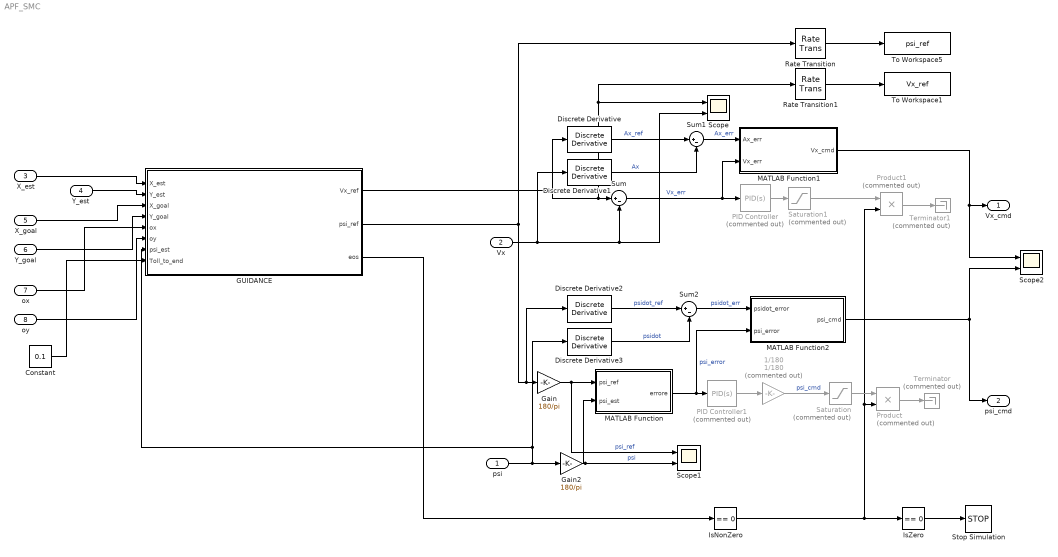
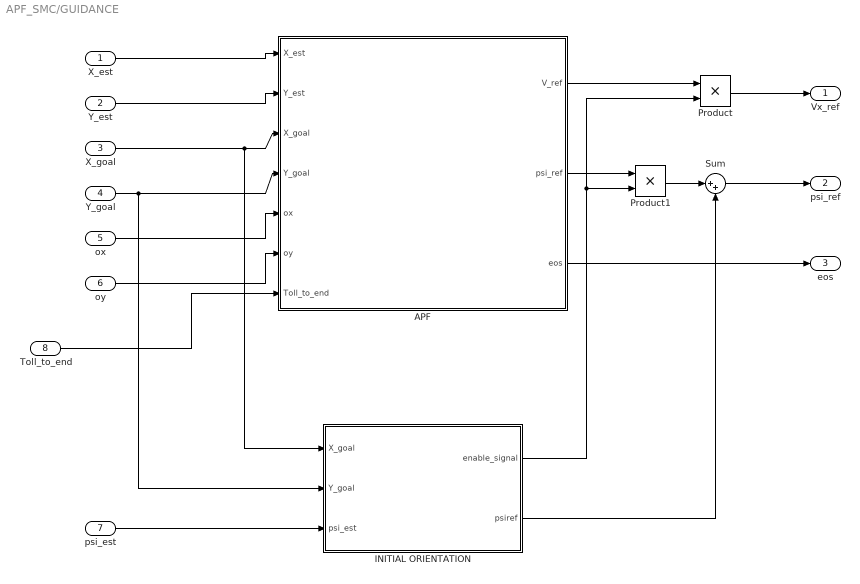
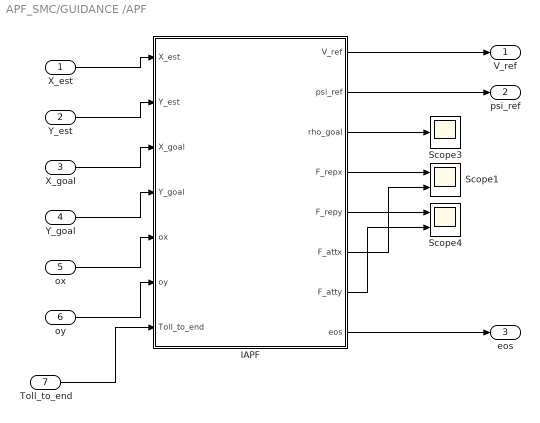
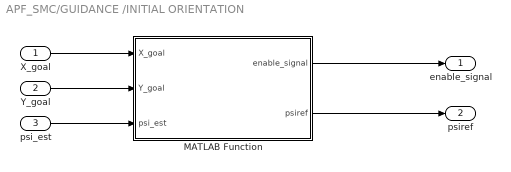
== matlab function APF_SMC/GUIDANCE /INITIAL ORIENTATION/MATLAB Function ==
function [enable_signal, psiref] = fcn(X_goal, Y_goal, psi_est)
psiref=0;
enable_signal=0;

persistent en
if isempty(en)
    en=0;
end

if en==0
if -pi<psi_est && psi_est<=-pi/2 
  if X_goal>=0 && Y_goal>=0
      enable_signal=0;
      psiref=0;
      en=0;
  end
   if X_goal>0 && Y_goal<0
      enable_signal=0;
      psiref=0;
      en=0;
   end
    if X_goal<=0 && Y_goal<=0
      enable_signal=1;
      en=1;
      psiref=0;
    end
    if X_goal<0 && Y_goal>0
      enable_signal=1;
      en=1;
      psiref=0;
    end
end
if pi/2<psi_est && psi_est<=pi 
  if X_goal>=0 && Y_goal>=0
      enable_signal=0;
      psiref=0;
      en=0;
  end
   if X_goal>0 && Y_goal<0
      enable_signal=0;
      psiref=0;
      en=0;
   end
    if X_goal<=0 && Y_goal<=0
      enable_signal=1;
      en=1;
      psiref=0;
    end
    if X_goal<0 && Y_goal>0
      enable_signal=1;
      en=1;
      psiref=0;
    end
end

if -pi/2<=psi_est && psi_est<=pi/2
  if X_goal>=0 && Y_goal>=0
      enable_signal=1;
      en=1;
      psiref=0;
  end
   if X_goal>0 && Y_goal<0
      enable_signal=1;
      en=1;
      psiref=0;
   end
    if X_goal<=0 && Y_goal<=0
      enable_signal=0;
      psiref=-pi;
      en=0;
    end
    if X_goal<0 && Y_goal>0
      enable_signal=0;
      psiref=pi;
      en=0;
    end
end
else
    enable_signal=1;
    psiref=0;
end

== matlab function APF_SMC/MATLAB Function1 ==
function Vx_cmd = SMC_Vx(Ax_err, Vx_err)
% SMC params
lamda = 30;
K = 0.1;
% Sliding surface
s = zeros(1);
s = (Ax_err) + lamda*(Vx_err);


Vx_cmd = K*sign(s);

== matlab function APF_SMC/MATLAB Function ==
function errore = fcn(psi_ref, psi_est)
errore=psi_ref-psi_est;

if abs(errore)>180
    errore=errore-360*sign(errore);
end

== matlab function APF_SMC/GUIDANCE /APF/IAPF ==
function [V_ref, psi_ref, rho_goal, F_repx, F_repy, F_attx, F_atty, eos]  = fcn(X_est, Y_est, X_goal, Y_goal,  ox, oy, Toll_to_end)

% Potential field characteristics
rho_0=0.7;                   % Area of influence of obstacle  [m]
kp = 0.15;                   % Attractive pottential gain
eta = 0.05;                  % Repulsive potential gain

q=[X_est, Y_est]';           % Actual position [m]       
qg=[X_goal, Y_goal]';        % Goal position   [m]
rho_goal=norm(q-qg,2);       % Distance actual position-goal position
d=2;                         % Distance from goal, point of attractive field characteristic switching

% ATTRACTIVE
if rho_goal<=d
F_attx = -kp*(X_est-X_goal);
F_atty = -kp*(Y_est-Y_goal);
else    
F_attx = -kp*(X_est-X_goal)*d/rho_goal;
F_atty = -kp*(Y_est-Y_goal)*d/rho_goal;
end


% REPULSIVE
F_repx=0;
F_repy=0;
dmin=10000;
qc=[0 0]';
obst=0;

for k=1:length(ox)
    qc=[ox(k) oy(k)]';                          % Obstacle position [m]
    dq = norm(q-qc,2);                          % Distance actual position- obstacle position
     
    if dmin >= dq
        dmin = dq;
        min_ost = k;
        qc=[ox(min_ost) oy(min_ost)]';
        rho = norm(q-qc,2) ;                    % Distance with the nearest obstacle
        
        if rho<=rho_0                           % Inside obstacle area! Danger
           F_repx=eta*(1/rho - 1/rho_0)*1/(rho).^2*(X_est-ox(min_ost))/norm(q-qc,2);
           F_repy=eta*(1/rho - 1/rho_0)*1/(rho).^2*(Y_est-oy(min_ost))/norm(q-qc,2);  
           obst=1/rho;
        end
     
     end
end

% To find the goal if the obstacle is near
dob=0.3;
dgr=0.3;

if norm(qg-qc,2)<=dob && norm(q-qg,2)<=dgr
    F_totx=F_attx;
    F_toty=F_atty;
else
    F_totx = F_attx+F_repx;
    F_toty = F_atty+F_repy;
end

% Potential Force
F_tot=norm([F_totx,F_toty]);


% ORIENTATION REFERENCE SIGNAL
psi_ref=atan2(F_toty,F_totx);


% VELOCITY REFERENCE SIGNAL
% 1° prova per il campo di velocità
% V_ref=F_totx/F_tot*0.3;

% 2° prova per il campo di velocità
delta=0.4/rho_goal+obst;
V_ref= 0.3*2/(2+delta);

eos = 0;
% END OF SIMULATION
if abs(rho_goal)<=Toll_to_end
    eos=1;
end

% Mathematical minimum
if F_tot==0
    psi_ref=0;
    V_ref=-0.3;
end

== matlab function APF_SMC/MATLAB Function2 ==
function psi_cmd = SMC_psi(psidot_error, psi_error)
% SMC params
lamda = 100;
K = 0.2;
% Sliding surface
s = zeros(1);
s = (psidot_error) + lamda*(psi_error);


psi_cmd = K*sign(s);

//
// Academic License - for use in teaching, academic research, and meeting
// course requirements at degree granting institutions only.  Not for
// government, commercial, or other organizational use.
//
// File: APF_SMC.cpp
//
// Code generated for Simulink model 'APF_SMC'.
//
// Model version                  : 1.113
// Simulink Coder version         : 9.1 (R2019a) 23-Nov-2018
// C/C++ source code generated on : Thu Dec  2 12:23:48 2021
//
// Target selection: ert.tlc
// Embedded hardware selection: ARM Compatible->ARM Cortex
// Code generation objectives: Unspecified
// Validation result: Not run
//
#include "APF_SMC.h"
#include "APF_SMC_private.h"

// Forward declaration for local functions
static real_T APF_SMC_norm(const real_T x[2]);

// Function for MATLAB Function: '<S11>/IAPF'
static real_T APF_SMC_norm(const real_T x[2])
{
  real_T y;
  real_T scale;
  real_T absxk;
  real_T t;
  scale = 3.3121686421112381E-170;
  absxk = std::abs(x[0]);
  if (absxk > 3.3121686421112381E-170) {
    y = 1.0;
    scale = absxk;
  } else {
    t = absxk / 3.3121686421112381E-170;
    y = t * t;
  }

  absxk = std::abs(x[1]);
  if (absxk > scale) {
    t = scale / absxk;
    y = y * t * t + 1.0;
    scale = absxk;
  } else {
    t = absxk / scale;
    y += t * t;
  }

  return scale * std::sqrt(y);
}

real_T rt_atan2d_snf(real_T u0, real_T u1)
{
  real_T y;
  int32_T u0_0;
  int32_T u1_0;
  if (rtIsNaN(u0) || rtIsNaN(u1)) {
    y = (rtNaN);
  } else if (rtIsInf(u0) && rtIsInf(u1)) {
    if (u0 > 0.0) {
      u0_0 = 1;
    } else {
      u0_0 = -1;
    }

    if (u1 > 0.0) {
      u1_0 = 1;
    } else {
      u1_0 = -1;
    }

    y = atan2((real_T)u0_0, (real_T)u1_0);
  } else if (u1 == 0.0) {
    if (u0 > 0.0) {
      y = RT_PI / 2.0;
    } else if (u0 < 0.0) {
      y = -(RT_PI / 2.0);
    } else {
      y = 0.0;
    }
  } else {
    y = atan2(u0, u1);
  }

  return y;
}

// Model step function
void APF_SMC_step(RT_MODEL_APF_SMC_T *const APF_SMC_M, ExtU_APF_SMC_T *APF_SMC_U,
                  ExtY_APF_SMC_T *APF_SMC_Y)
{
  DW_APF_SMC_T *APF_SMC_DW = ((DW_APF_SMC_T *) APF_SMC_M->dwork);
  real_T F_repy;
  real_T obst;
  real_T rho;
  real_T F_totx;
  real_T F_toty;
  real_T F_tot;
  real_T scale;
  real_T absxk;
  real_T t;
  int32_T rtb_enable_signal;
  real_T rtb_psiref;
  int32_T rtb_eos;
  real_T q[2];
  real_T q_0[2];
  real_T q_tmp;
  boolean_T guard1 = false;

  // MATLAB Function: '<S11>/IAPF' incorporates:
  //   Constant: '<Root>/Constant'
  //   Inport: '<Root>/X_est'
  //   Inport: '<Root>/X_goal'
  //   Inport: '<Root>/Y_est'
  //   Inport: '<Root>/Y_goal'
  //   Inport: '<Root>/ox'
  //   Inport: '<Root>/oy'

  F_tot = APF_SMC_U->X_est - APF_SMC_U->X_goal;
  q_0[0] = F_tot;
  scale = APF_SMC_U->Y_est - APF_SMC_U->Y_goal;
  q_0[1] = scale;
  rtb_psiref = APF_SMC_norm(q_0);
  if (rtb_psiref <= 2.0) {
    F_totx = (APF_SMC_U->X_est - APF_SMC_U->X_goal) * -0.15;
    F_toty = (APF_SMC_U->Y_est - APF_SMC_U->Y_goal) * -0.15;
  } else {
    F_totx = F_tot * -0.15 * 2.0 / rtb_psiref;
    F_toty = scale * -0.15 * 2.0 / rtb_psiref;
  }

  absxk = 0.0;
  F_repy = 0.0;
  obst = 0.0;
  t = APF_SMC_U->X_est - APF_SMC_U->ox;
  q_0[0] = t;
  q_tmp = APF_SMC_U->Y_est - APF_SMC_U->oy;
  q_0[1] = q_tmp;
  if (10000.0 >= APF_SMC_norm(q_0)) {
    q_0[0] = t;
    q_0[1] = q_tmp;
    rho = APF_SMC_norm(q_0);
    if (rho <= 0.7) {
      q_0[0] = t;
      q[0] = t;
      q_0[1] = q_tmp;
      q[1] = q_tmp;
      obst = (1.0 / rho - 1.4285714285714286) * 0.05 / (rho * rho);
      absxk = obst * t / APF_SMC_norm(q_0);
      F_repy = obst * q_tmp / APF_SMC_norm(q);
      obst = 1.0 / rho;
    }
  }

  q_0[0] = APF_SMC_U->X_goal - APF_SMC_U->ox;
  q_0[1] = APF_SMC_U->Y_goal - APF_SMC_U->oy;
  guard1 = false;
  if (APF_SMC_norm(q_0) <= 0.3) {
    q_0[0] = F_tot;
    q_0[1] = scale;
    if (APF_SMC_norm(q_0) <= 0.3) {
    } else {
      guard1 = true;
    }
  } else {
    guard1 = true;
  }

  if (guard1) {
    F_totx += absxk;
    F_toty += F_repy;
  }

  scale = 3.3121686421112381E-170;
  absxk = std::abs(F_totx);
  if (absxk > 3.3121686421112381E-170) {
    F_tot = 1.0;
    scale = absxk;
  } else {
    t = absxk / 3.3121686421112381E-170;
    F_tot = t * t;
  }

  absxk = std::abs(F_toty);
  if (absxk > scale) {
    t = scale / absxk;
    F_tot = F_tot * t * t + 1.0;
    scale = absxk;
  } else {
    t = absxk / scale;
    F_tot += t * t;
  }

  F_tot = scale * std::sqrt(F_tot);
  F_totx = rt_atan2d_snf(F_toty, F_totx);
  obst = 0.6 / ((0.4 / rtb_psiref + obst) + 2.0);
  rtb_eos = 0;
  if (std::abs(rtb_psiref) <= APF_SMC_P.Constant_Value) {
    rtb_eos = 1;
  }

  if (F_tot == 0.0) {
    F_totx = 0.0;
    obst = -0.3;
  }

  // End of MATLAB Function: '<S11>/IAPF'

  // MATLAB Function: '<S12>/MATLAB Function' incorporates:
  //   Inport: '<Root>/X_goal'
  //   Inport: '<Root>/Y_goal'
  //   Inport: '<Root>/psi'

  rtb_psiref = 0.0;
  rtb_enable_signal = 0;
  if (APF_SMC_DW->en == 0.0) {
    if ((-3.1415926535897931 < APF_SMC_U->psi) && (APF_SMC_U->psi <=
         -1.5707963267948966)) {
      if ((APF_SMC_U->X_goal >= 0.0) && (APF_SMC_U->Y_goal >= 0.0)) {
        APF_SMC_DW->en = 0.0;
      }

      if ((APF_SMC_U->X_goal > 0.0) && (APF_SMC_U->Y_goal < 0.0)) {
        APF_SMC_DW->en = 0.0;
      }

      if ((APF_SMC_U->X_goal <= 0.0) && (APF_SMC_U->Y_goal <= 0.0)) {
        rtb_enable_signal = 1;
        APF_SMC_DW->en = 1.0;
      }

      if ((APF_SMC_U->X_goal < 0.0) && (APF_SMC_U->Y_goal > 0.0)) {
        rtb_enable_signal = 1;
        APF_SMC_DW->en = 1.0;
      }
    }

    if ((1.5707963267948966 < APF_SMC_U->psi) && (APF_SMC_U->psi <=
         3.1415926535897931)) {
      if ((APF_SMC_U->X_goal >= 0.0) && (APF_SMC_U->Y_goal >= 0.0)) {
        rtb_enable_signal = 0;
        APF_SMC_DW->en = 0.0;
      }

      if ((APF_SMC_U->X_goal > 0.0) && (APF_SMC_U->Y_goal < 0.0)) {
        rtb_enable_signal = 0;
        APF_SMC_DW->en = 0.0;
      }

      if ((APF_SMC_U->X_goal <= 0.0) && (APF_SMC_U->Y_goal <= 0.0)) {
        rtb_enable_signal = 1;
        APF_SMC_DW->en = 1.0;
      }

      if ((APF_SMC_U->X_goal < 0.0) && (APF_SMC_U->Y_goal > 0.0)) {
        rtb_enable_signal = 1;
        APF_SMC_DW->en = 1.0;
      }
    }

    if ((-1.5707963267948966 <= APF_SMC_U->psi) && (APF_SMC_U->psi <=
         1.5707963267948966)) {
      if ((APF_SMC_U->X_goal >= 0.0) && (APF_SMC_U->Y_goal >= 0.0)) {
        rtb_enable_signal = 1;
        APF_SMC_DW->en = 1.0;
      }

      if ((APF_SMC_U->X_goal > 0.0) && (APF_SMC_U->Y_goal < 0.0)) {
        rtb_enable_signal = 1;
        APF_SMC_DW->en = 1.0;
      }

      if ((APF_SMC_U->X_goal <= 0.0) && (APF_SMC_U->Y_goal <= 0.0)) {
        rtb_enable_signal = 0;
        rtb_psiref = -3.1415926535897931;
        APF_SMC_DW->en = 0.0;
      }

      if ((APF_SMC_U->X_goal < 0.0) && (APF_SMC_U->Y_goal > 0.0)) {
        rtb_enable_signal = 0;
        rtb_psiref = 3.1415926535897931;
        APF_SMC_DW->en = 0.0;
      }
    }
  } else {
    rtb_enable_signal = 1;
  }

  // End of MATLAB Function: '<S12>/MATLAB Function'

  // Sum: '<S5>/Sum' incorporates:
  //   Product: '<S5>/Product1'

  F_tot = F_totx * static_cast<real_T>(rtb_enable_signal) + rtb_psiref;

  // SampleTimeMath: '<S3>/TSamp'
  //
  //  About '<S3>/TSamp':
  //   y = u * K where K = 1 / ( w * Ts )

  rtb_psiref = F_tot * APF_SMC_P.TSamp_WtEt;

  // SampleTimeMath: '<S4>/TSamp' incorporates:
  //   Inport: '<Root>/psi'
  //
  //  About '<S4>/TSamp':
  //   y = u * K where K = 1 / ( w * Ts )

  F_totx = APF_SMC_U->psi * APF_SMC_P.TSamp_WtEt_e;

  // MATLAB Function: '<Root>/MATLAB Function' incorporates:
  //   Gain: '<Root>/Gain'
  //   Gain: '<Root>/Gain2'
  //   Inport: '<Root>/psi'

  F_toty = APF_SMC_P.Gain_Gain * F_tot - APF_SMC_P.Gain2_Gain * APF_SMC_U->psi;
  if (std::abs(F_toty) > 180.0) {
    if (F_toty < 0.0) {
      F_tot = -1.0;
    } else if (F_toty > 0.0) {
      F_tot = 1.0;
    } else if (F_toty == 0.0) {
      F_tot = 0.0;
    } else {
      F_tot = (rtNaN);
    }

    F_toty -= 360.0 * F_tot;
  }

  // End of MATLAB Function: '<Root>/MATLAB Function'

  // MATLAB Function: '<Root>/MATLAB Function2' incorporates:
  //   Sum: '<Root>/Sum2'
  //   Sum: '<S3>/Diff'
  //   Sum: '<S4>/Diff'
  //   UnitDelay: '<S3>/UD'
  //   UnitDelay: '<S4>/UD'
  //
  //  Block description for '<S3>/Diff':
  //
  //   Add in CPU
  //
  //  Block description for '<S4>/Diff':
  //
  //   Add in CPU
  //
  //  Block description for '<S3>/UD':
  //
  //   Store in Global RAM
  //
  //  Block description for '<S4>/UD':
  //
  //   Store in Global RAM

  F_tot = ((rtb_psiref - APF_SMC_DW->UD_DSTATE) - (F_totx -
            APF_SMC_DW->UD_DSTATE_o)) + 100.0 * F_toty;
  if (F_tot < 0.0) {
    F_tot = -1.0;
  } else if (F_tot > 0.0) {
    F_tot = 1.0;
  } else if (F_tot == 0.0) {
    F_tot = 0.0;
  } else {
    F_tot = (rtNaN);
  }

  // Outport: '<Root>/psi_cmd' incorporates:
  //   MATLAB Function: '<Root>/MATLAB Function2'

  APF_SMC_Y->psi_cmd = 0.2 * F_tot;

  // Product: '<S5>/Product'
  F_tot = obst * static_cast<real_T>(rtb_enable_signal);

  // SampleTimeMath: '<S1>/TSamp'
  //
  //  About '<S1>/TSamp':
  //   y = u * K where K = 1 / ( w * Ts )

  obst = F_tot * APF_SMC_P.TSamp_WtEt_d;

  // SampleTimeMath: '<S2>/TSamp' incorporates:
  //   Inport: '<Root>/Vx'
  //
  //  About '<S2>/TSamp':
  //   y = u * K where K = 1 / ( w * Ts )

  F_toty = APF_SMC_U->Vx * APF_SMC_P.TSamp_WtEt_o;

  // MATLAB Function: '<Root>/MATLAB Function1' incorporates:
  //   Inport: '<Root>/Vx'
  //   Sum: '<Root>/Sum'
  //   Sum: '<Root>/Sum1'
  //   Sum: '<S1>/Diff'
  //   Sum: '<S2>/Diff'
  //   UnitDelay: '<S1>/UD'
  //   UnitDelay: '<S2>/UD'
  //
  //  Block description for '<S1>/Diff':
  //
  //   Add in CPU
  //
  //  Block description for '<S2>/Diff':
  //
  //   Add in CPU
  //
  //  Block description for '<S1>/UD':
  //
  //   Store in Global RAM
  //
  //  Block description for '<S2>/UD':
  //
  //   Store in Global RAM

  F_tot = ((obst - APF_SMC_DW->UD_DSTATE_d) - (F_toty - APF_SMC_DW->UD_DSTATE_p))
    + (F_tot - APF_SMC_U->Vx) * 30.0;
  if (F_tot < 0.0) {
    F_tot = -1.0;
  } else if (F_tot > 0.0) {
    F_tot = 1.0;
  } else if (F_tot == 0.0) {
    F_tot = 0.0;
  } else {
    F_tot = (rtNaN);
  }

  // Outport: '<Root>/Vx_cmd' incorporates:
  //   MATLAB Function: '<Root>/MATLAB Function1'

  APF_SMC_Y->Vx_cmd = 0.1 * F_tot;

  // Stop: '<Root>/Stop Simulation' incorporates:
  //   Constant: '<S6>/Constant'
  //   Constant: '<S7>/Constant'
  //   RelationalOperator: '<S6>/Compare'
  //   RelationalOperator: '<S7>/Compare'

  if ((rtb_eos == APF_SMC_P.Constant_Value_f) == static_cast<int32_T>
      (APF_SMC_P.Constant_Value_n)) {
    rtmSetStopRequested(APF_SMC_M, 1);
  }

  // End of Stop: '<Root>/Stop Simulation'

  // Update for UnitDelay: '<S3>/UD'
  //
  //  Block description for '<S3>/UD':
  //
  //   Store in Global RAM

  APF_SMC_DW->UD_DSTATE = rtb_psiref;

  // Update for UnitDelay: '<S4>/UD'
  //
  //  Block description for '<S4>/UD':
  //
  //   Store in Global RAM

  APF_SMC_DW->UD_DSTATE_o = F_totx;

  // Update for UnitDelay: '<S1>/UD'
  //
  //  Block description for '<S1>/UD':
  //
  //   Store in Global RAM

  APF_SMC_DW->UD_DSTATE_d = obst;

  // Update for UnitDelay: '<S2>/UD'
  //
  //  Block description for '<S2>/UD':
  //
  //   Store in Global RAM

  APF_SMC_DW->UD_DSTATE_p = F_toty;
}
